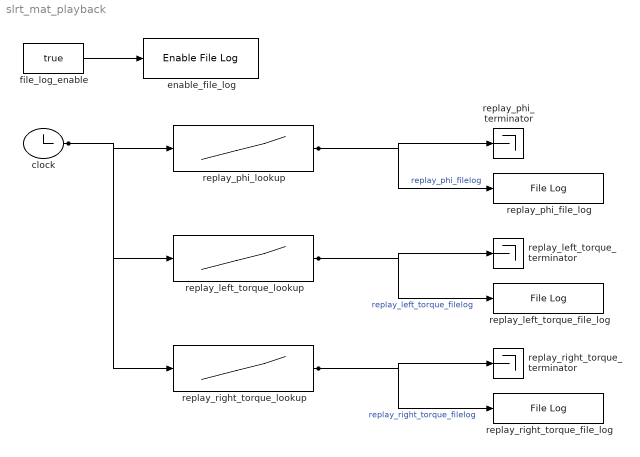
/*
 * slrt_mat_playback.cpp
 *
 * Academic License - for use in teaching, academic research, and meeting
 * course requirements at degree granting institutions only.  Not for
 * government, commercial, or other organizational use.
 *
 * Code generation for model "slrt_mat_playback".
 *
 * Model version              : 1.1
 * Simulink Coder version : 23.2 (R2023b) 01-Aug-2023
 * C++ source code generated on : Mon Jun 29 22:52:37 2026
 *
 * Target selection: slrealtime.tlc
 * Note: GRT includes extra infrastructure and instrumentation for prototyping
 * Embedded hardware selection: Intel->x86-64 (Linux 64)
 * Code generation objectives: Unspecified
 * Validation result: Not run
 */

#include "slrt_mat_playback.h"
#include "slrt_mat_playback_cal.h"
#include "rte_slrt_mat_playback_parameters.h"
#include "slrt_mat_playback_private.h"
#include <cstring>

extern "C"
{

#include "rt_nonfinite.h"

}

/* Block signals (default storage) */
B_slrt_mat_playback_T slrt_mat_playback_B;

/* Block states (default storage) */
DW_slrt_mat_playback_T slrt_mat_playback_DW;

/* Real-time model */
RT_MODEL_slrt_mat_playback_T slrt_mat_playback_M_ = RT_MODEL_slrt_mat_playback_T
  ();
RT_MODEL_slrt_mat_playback_T *const slrt_mat_playback_M = &slrt_mat_playback_M_;
real_T look1_binlcpw(real_T u0, const real_T bp0[], const real_T table[],
                     uint32_T maxIndex)
{
  real_T frac;
  real_T yL_0d0;
  uint32_T iLeft;

  /* Column-major Lookup 1-D
     Search method: 'binary'
     Use previous index: 'off'
     Interpolation method: 'Linear point-slope'
     Extrapolation method: 'Clip'
     Use last breakpoint for index at or above upper limit: 'off'
     Remove protection against out-of-range input in generated code: 'off'
   */
  /* Prelookup - Index and Fraction
     Index Search method: 'binary'
     Extrapolation method: 'Clip'
     Use previous index: 'off'
     Use last breakpoint for index at or above upper limit: 'off'
     Remove protection against out-of-range input in generated code: 'off'
   */
  if (u0 <= bp0[0U]) {
    iLeft = 0U;
    frac = 0.0;
  } else if (u0 < bp0[maxIndex]) {
    uint32_T bpIdx;
    uint32_T iRght;

    /* Binary Search */
    bpIdx = maxIndex >> 1U;
    iLeft = 0U;
    iRght = maxIndex;
    while (iRght - iLeft > 1U) {
      if (u0 < bp0[bpIdx]) {
        iRght = bpIdx;
      } else {
        iLeft = bpIdx;
      }

      bpIdx = (iRght + iLeft) >> 1U;
    }

    frac = (u0 - bp0[iLeft]) / (bp0[iLeft + 1U] - bp0[iLeft]);
  } else {
    iLeft = maxIndex - 1U;
    frac = 1.0;
  }

  /* Column-major Interpolation 1-D
     Interpolation method: 'Linear point-slope'
     Use last breakpoint for index at or above upper limit: 'off'
     Overflow mode: 'portable wrapping'
   */
  yL_0d0 = table[iLeft];
  return (table[iLeft + 1U] - yL_0d0) * frac + yL_0d0;
}

/* Model step function */
void slrt_mat_playback_step(void)
{
  /* Clock: '<Root>/clock' */
  slrt_mat_playback_B.clock = slrt_mat_playback_M->Timing.t[0];

  /* Lookup_n-D: '<Root>/replay_left_torque_lookup' incorporates:
   *  Clock: '<Root>/clock'
   */
  slrt_mat_playback_B.replay_left_torque_filelog = look1_binlcpw
    (slrt_mat_playback_B.clock, get_replay_left_torque_bp(),
     get_replay_left_torque_data(), 12000U);

  /* Lookup_n-D: '<Root>/replay_phi_lookup' incorporates:
   *  Clock: '<Root>/clock'
   */
  slrt_mat_playback_B.replay_phi_filelog = look1_binlcpw
    (slrt_mat_playback_B.clock, get_replay_phi_bp(), get_replay_phi_data(),
     12000U);

  /* Lookup_n-D: '<Root>/replay_right_torque_lookup' incorporates:
   *  Clock: '<Root>/clock'
   */
  slrt_mat_playback_B.replay_right_torque_filelog = look1_binlcpw
    (slrt_mat_playback_B.clock, get_replay_right_torque_bp(),
     get_replay_right_torque_data(), 12000U);

  /* ToAsyncQueueBlock generated from: '<S1>/replay_left_torque_lookup' */
  slrtLogSignal
    (slrt_mat_playback_DW.TAQSigLogging_InsertedFor_rep_m.SLRTSigHandles,
     (((slrt_mat_playback_M->Timing.clockTick1+
        slrt_mat_playback_M->Timing.clockTickH1* 4294967296.0)) * 0.001));

  /* ToAsyncQueueBlock generated from: '<S2>/replay_phi_lookup' */
  slrtLogSignal
    (slrt_mat_playback_DW.TAQSigLogging_InsertedFor_rep_c.SLRTSigHandles,
     (((slrt_mat_playback_M->Timing.clockTick1+
        slrt_mat_playback_M->Timing.clockTickH1* 4294967296.0)) * 0.001));

  /* ToAsyncQueueBlock generated from: '<S3>/replay_right_torque_lookup' */
  slrtLogSignal
    (slrt_mat_playback_DW.TAQSigLogging_InsertedFor_rep_k.SLRTSigHandles,
     (((slrt_mat_playback_M->Timing.clockTick1+
        slrt_mat_playback_M->Timing.clockTickH1* 4294967296.0)) * 0.001));

  /* Constant: '<Root>/file_log_enable' */
  slrt_mat_playback_B.file_log_enable =
    slrt_mat_playback_cal->file_log_enable_Value;

  /* S-Function (slrealtimeenablelogging): '<Root>/enable_file_log' */

  /* Level2 S-Function Block: '<Root>/enable_file_log' (slrealtimeenablelogging) */
  {
    SimStruct *rts = slrt_mat_playback_M->childSfunctions[0];
    sfcnOutputs(rts,0);
  }

  /* Update absolute time for base rate */
  /* The "clockTick0" counts the number of times the code of this task has
   * been executed. The absolute time is the multiplication of "clockTick0"
   * and "Timing.stepSize0". Size of "clockTick0" ensures timer will not
   * overflow during the application lifespan selected.
   * Timer of this task consists of two 32 bit unsigned integers.
   * The two integers represent the low bits Timing.clockTick0 and the high bits
   * Timing.clockTickH0. When the low bit overflows to 0, the high bits increment.
   */
  if (!(++slrt_mat_playback_M->Timing.clockTick0)) {
    ++slrt_mat_playback_M->Timing.clockTickH0;
  }

  slrt_mat_playback_M->Timing.t[0] = slrt_mat_playback_M->Timing.clockTick0 *
    slrt_mat_playback_M->Timing.stepSize0 +
    slrt_mat_playback_M->Timing.clockTickH0 *
    slrt_mat_playback_M->Timing.stepSize0 * 4294967296.0;

  {
    /* Update absolute timer for sample time: [0.001s, 0.0s] */
    /* The "clockTick1" counts the number of times the code of this task has
     * been executed. The absolute time is the multiplication of "clockTick1"
     * and "Timing.stepSize1". Size of "clockTick1" ensures timer will not
     * overflow during the application lifespan selected.
     * Timer of this task consists of two 32 bit unsigned integers.
     * The two integers represent the low bits Timing.clockTick1 and the high bits
     * Timing.clockTickH1. When the low bit overflows to 0, the high bits increment.
     */
    if (!(++slrt_mat_playback_M->Timing.clockTick1)) {
      ++slrt_mat_playback_M->Timing.clockTickH1;
    }

    slrt_mat_playback_M->Timing.t[1] = slrt_mat_playback_M->Timing.clockTick1 *
      slrt_mat_playback_M->Timing.stepSize1 +
      slrt_mat_playback_M->Timing.clockTickH1 *
      slrt_mat_playback_M->Timing.stepSize1 * 4294967296.0;
  }
}
